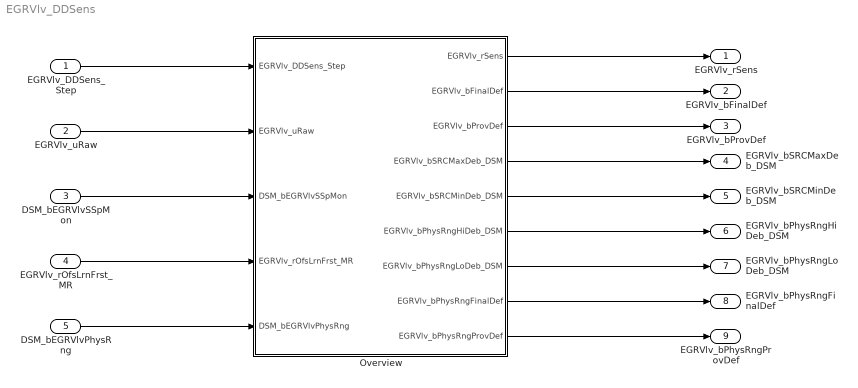
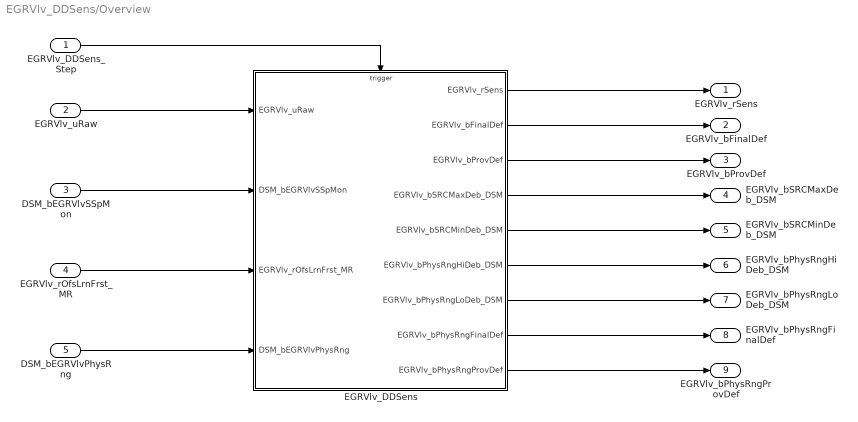
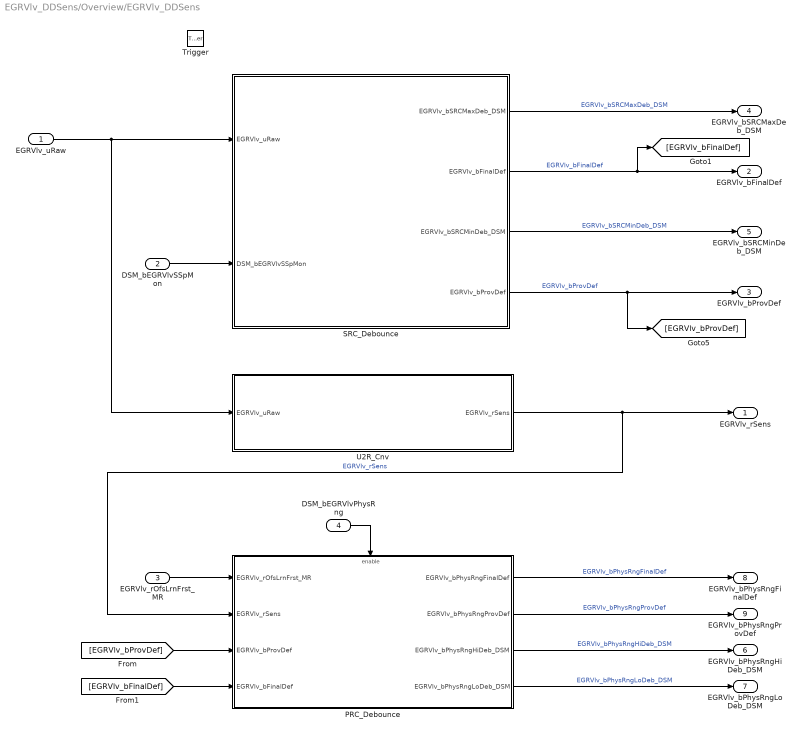
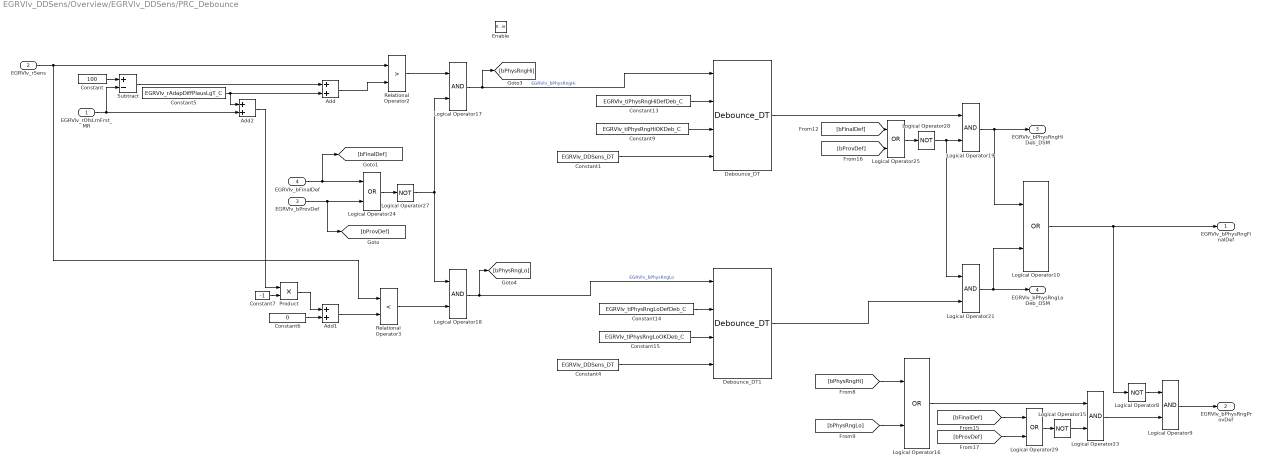
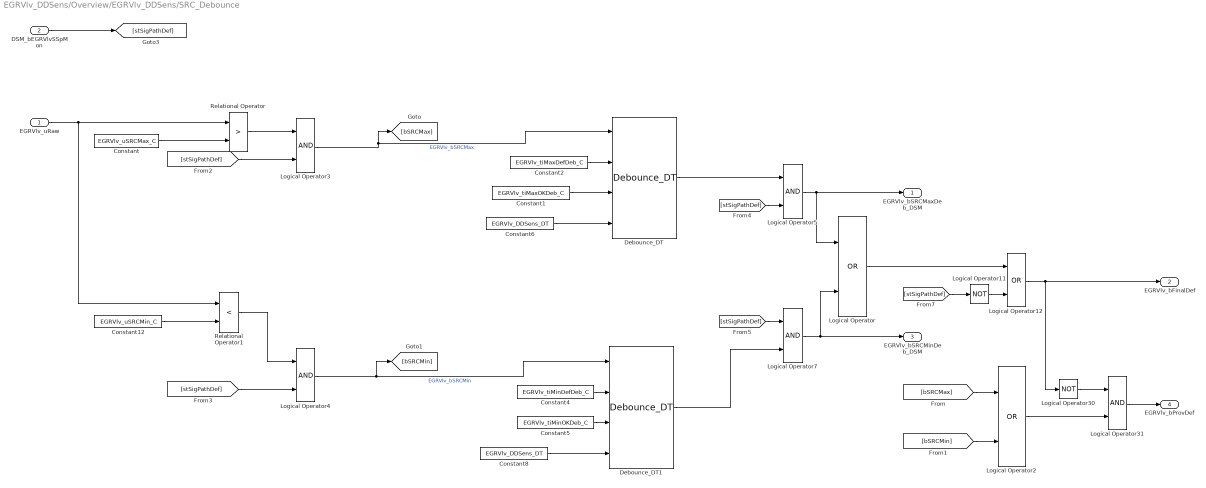
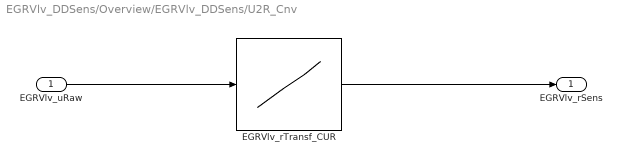
/*
 * File: EGRVlv_DDSens.c
 *
 * Code generated for Simulink model 'EGRVlv_DDSens'.
 *
 * Model version                  : 1.60
 * Simulink Coder version         : 9.4 (R2020b) 29-Jul-2020
 * C/C++ source code generated on : Thu Feb  4 09:39:52 2021
 *
 * Target selection: ert.tlc
 * Embedded hardware selection: ARM Compatible->ARM Cortex
 * Code generation objectives: Unspecified
 * Validation result: Not run
 */

#include "EGRVlv_DDSens.h"
#include "look1_is16lu16n16ts16D_vPytCsBO.h"
#ifndef UCHAR_MAX
#include <limits.h>
#endif

#if ( UCHAR_MAX != (0xFFU) ) || ( SCHAR_MAX != (0x7F) )
#error Code was generated for compiler with different sized uchar/char. \
Consider adjusting Test hardware word size settings on the \
Hardware Implementation pane to match your compiler word sizes as \
defined in limits.h of the compiler. Alternatively, you can \
select the Test hardware is the same as production hardware option and \
select the Enable portable word sizes option on the Code Generation > \
Verification pane for ERT based targets, which will disable the \
preprocessor word size checks.
#endif

#if ( USHRT_MAX != (0xFFFFU) ) || ( SHRT_MAX != (0x7FFF) )
#error Code was generated for compiler with different sized ushort/short. \
Consider adjusting Test hardware word size settings on the \
Hardware Implementation pane to match your compiler word sizes as \
defined in limits.h of the compiler. Alternatively, you can \
select the Test hardware is the same as production hardware option and \
select the Enable portable word sizes option on the Code Generation > \
Verification pane for ERT based targets, which will disable the \
preprocessor word size checks.
#endif

#if ( UINT_MAX != (0xFFFFFFFFU) ) || ( INT_MAX != (0x7FFFFFFF) )
#error Code was generated for compiler with different sized uint/int. \
Consider adjusting Test hardware word size settings on the \
Hardware Implementation pane to match your compiler word sizes as \
defined in limits.h of the compiler. Alternatively, you can \
select the Test hardware is the same as production hardware option and \
select the Enable portable word sizes option on the Code Generation > \
Verification pane for ERT based targets, which will disable the \
preprocessor word size checks.
#endif

#if ( ULONG_MAX != (0xFFFFFFFFU) ) || ( LONG_MAX != (0x7FFFFFFF) )
#error Code was generated for compiler with different sized ulong/long. \
Consider adjusting Test hardware word size settings on the \
Hardware Implementation pane to match your compiler word sizes as \
defined in limits.h of the compiler. Alternatively, you can \
select the Test hardware is the same as production hardware option and \
select the Enable portable word sizes option on the Code Generation > \
Verification pane for ERT based targets, which will disable the \
preprocessor word size checks.
#endif

/* Exported block signals */
DutyCycle EGRVlv_rSens;                /* '<S5>/EGRVlv_rTransf_CUR'
                                        * Sensed value of actuator position without error handling
                                        */
boolean_T EGRVlv_bSRCMax;              /* '<S4>/Logical Operator3'
                                        * EGR Valve voltage signal maximum limit value
                                        */
boolean_T EGRVlv_bSRCMaxDeb_DSM;       /* '<S4>/Logical Operator5'
                                        * SRC High for EGR position sensor voltage
                                        */
boolean_T EGRVlv_bSRCMin;              /* '<S4>/Logical Operator4'
                                        * EGR Valve voltage signal minimum limit value
                                        */
boolean_T EGRVlv_bSRCMinDeb_DSM;       /* '<S4>/Logical Operator7'
                                        * SRC Low for EGR position sensor voltage
                                        */
boolean_T EGRVlv_bFinalDef;            /* '<S4>/Logical Operator12'
                                        * the final fault flag
                                        */
boolean_T EGRVlv_bProvDef;             /* '<S4>/Logical Operator31'
                                        * the fault flag for the moment
                                        */
boolean_T EGRVlv_bPhysRngFinalDef;     /* '<S2>/PRC_Debounce'
                                        * Status Sensor of the EGR valve physical Signal range check finally defect
                                        */
boolean_T EGRVlv_bPhysRngProvDef;      /* '<S2>/PRC_Debounce'
                                        * Status Sensor of the EGR valve physical Signal range check temporary defect
                                        */
boolean_T EGRVlv_bPhysRngHiDeb_DSM;    /* '<S2>/PRC_Debounce'
                                        * Status of EGRVlv_bPhysRngHiDeb
                                        */
boolean_T EGRVlv_bPhysRngLoDeb_DSM;    /* '<S2>/PRC_Debounce'
                                        * Status of EGRVlv_bPhysRngLoDeb
                                        */
boolean_T EGRVlv_bPhysRngHi;           /* '<S3>/Logical Operator17'
                                        * Status Sensor of the EGR Valve high voltage Signal range
                                        */
boolean_T EGRVlv_bPhysRngLo;           /* '<S3>/Logical Operator18'
                                        * Status Sensor of the EGR Valve low voltage Signal range
                                        */

/* Block signals (default storage) */
B_EGRVlv_DDSens_T EGRVlv_DDSens_B;

/* Block states (default storage) */
DW_EGRVlv_DDSens_T EGRVlv_DDSens_DW;

/* Previous zero-crossings (trigger) states */
PrevZCX_EGRVlv_DDSens_T EGRVlv_DDSens_PrevZCX;

/* Real-time model */
static RT_MODEL_EGRVlv_DDSens_T EGRVlv_DDSens_M_;
RT_MODEL_EGRVlv_DDSens_T *const EGRVlv_DDSens_M = &EGRVlv_DDSens_M_;

/* Model step function */
void EGRVlv_DDSens_Step(void)
{
  int32_T tmp;
  int32_T tmp_0;
  uint32_T tmp_1;
  Debncd_ms tmp_2;
  boolean_T Delay2_DSTATE_f_tmp;
  boolean_T Delay2_DSTATE_tmp;

  /* RootInportFunctionCallGenerator generated from: '<Root>/EGRVlv_DDSens_Step' incorporates:
   *  SubSystem: '<S1>/EGRVlv_DDSens'
   */
  /* Lookup_n-D: '<S5>/EGRVlv_rTransf_CUR' incorporates:
   *  Inport: '<Root>/EGRVlv_uRaw'
   *
   * Block description for '<Root>/EGRVlv_uRaw':
   *  Raw voltage value of position sensor
   */
  EGRVlv_rSens = look1_is16lu16n16ts16D_vPytCsBO(EGRVlv_uRaw, ((const Volt_mV *)
    &(EGRVlv_rTransf_CURX[0])), ((const DutyCycle *)&(EGRVlv_rTransf_CUR[0])),
    &EGRVlv_DDSens_DW.m_bpIndex, 24U);

  /* Logic: '<S4>/Logical Operator3' incorporates:
   *  Constant: '<S4>/Constant'
   *  Inport: '<Root>/DSM_bEGRVlvSSpMon'
   *  Inport: '<Root>/EGRVlv_uRaw'
   *  RelationalOperator: '<S4>/Relational Operator'
   *
   * Block description for '<Root>/DSM_bEGRVlvSSpMon':
   *  Status of FId_EGRVlvSSpMon
   *
   * Block description for '<Root>/EGRVlv_uRaw':
   *  Raw voltage value of position sensor
   */
  EGRVlv_bSRCMax = ((EGRVlv_uRaw > EGRVlv_uSRCMax_C) && DSM_bEGRVlvSSpMon);

  /* Delay: '<S8>/Delay1' */
  if (EGRVlv_DDSens_DW.icLoad != 0) {
    /* Switch: '<S8>/Switch1' */
    EGRVlv_DDSens_DW.Delay1_DSTATE = EGRVlv_bSRCMax;
  }

  /* Delay: '<S8>/Delay' incorporates:
   *  Delay: '<S8>/Delay2'
   */
  if (EGRVlv_DDSens_DW.Delay2_DSTATE && (EGRVlv_DDSens_PrevZCX.Delay_Reset_ZCE
       != POS_ZCSIG)) {
    /* MinMax: '<S8>/Min' */
    EGRVlv_DDSens_DW.Delay_DSTATE = 0U;
  }

  EGRVlv_DDSens_PrevZCX.Delay_Reset_ZCE = EGRVlv_DDSens_DW.Delay2_DSTATE;

  /* Switch: '<S8>/Switch2' incorporates:
   *  Delay: '<S8>/Delay'
   *  Delay: '<S8>/Delay1'
   *  MinMax: '<S8>/Min'
   *  RelationalOperator: '<S8>/Relational Operator1'
   */
  if (EGRVlv_bSRCMax == EGRVlv_DDSens_DW.Delay1_DSTATE) {
    /* Sum: '<S8>/Add' incorporates:
     *  Constant: '<S4>/Constant6'
     *  Delay: '<S8>/Delay'
     */
    tmp_1 = EGRVlv_DDSens_DW.Delay_DSTATE + 100U;
    if (EGRVlv_DDSens_DW.Delay_DSTATE + 100U > 65535U) {
      tmp_1 = 65535U;
    }

    /* MinMax: '<S8>/Min' incorporates:
     *  Delay: '<S8>/Delay'
     *  Sum: '<S8>/Add'
     *  Switch: '<S8>/Switch2'
     */
    EGRVlv_DDSens_DW.Delay_DSTATE = (Debncd_ms)tmp_1;
  } else {
    if (EGRVlv_DDSens_DW.Delay_DSTATE > 100) {
      /* MinMax: '<S8>/Min' incorporates:
       *  Delay: '<S8>/Delay'
       */
      tmp_2 = EGRVlv_DDSens_DW.Delay_DSTATE;
    } else {
      /* MinMax: '<S8>/Min' incorporates:
       *  Constant: '<S4>/Constant6'
       */
      tmp_2 = 100U;
    }

    /* Sum: '<S8>/Subtract' incorporates:
     *  Constant: '<S4>/Constant6'
     */
    tmp_0 = tmp_2 - 100;

    /* MinMax: '<S8>/Min' incorporates:
     *  Constant: '<S4>/Constant6'
     *  Delay: '<S8>/Delay'
     */
    if (EGRVlv_DDSens_DW.Delay_DSTATE <= 100) {
      EGRVlv_DDSens_DW.Delay_DSTATE = 100U;
    }

    /* Sum: '<S8>/Subtract' incorporates:
     *  Constant: '<S4>/Constant6'
     */
    if (EGRVlv_DDSens_DW.Delay_DSTATE - 100 < 0) {
      tmp_0 = 0;
    }

    /* MinMax: '<S8>/Min' incorporates:
     *  Delay: '<S8>/Delay'
     *  Sum: '<S8>/Subtract'
     *  Switch: '<S8>/Switch2'
     */
    EGRVlv_DDSens_DW.Delay_DSTATE = (Debncd_ms)tmp_0;
  }

  /* End of Switch: '<S8>/Switch2' */

  /* Logic: '<S8>/Logical Operator5' incorporates:
   *  Delay: '<S8>/Delay1'
   *  Logic: '<S8>/Logical Operator1'
   *  Switch: '<S8>/Switch1'
   */
  Delay2_DSTATE_tmp = !EGRVlv_DDSens_DW.Delay1_DSTATE;

  /* Logic: '<S8>/Logical Operator' incorporates:
   *  Constant: '<S4>/Constant1'
   *  Constant: '<S4>/Constant2'
   *  Delay: '<S8>/Delay'
   *  Delay: '<S8>/Delay1'
   *  Delay: '<S8>/Delay2'
   *  Logic: '<S8>/Logical Operator2'
   *  Logic: '<S8>/Logical Operator3'
   *  Logic: '<S8>/Logical Operator5'
   *  RelationalOperator: '<S8>/Relational Operator2'
   *  RelationalOperator: '<S8>/Relational Operator3'
   *  Switch: '<S8>/Switch2'
   */
  EGRVlv_DDSens_DW.Delay2_DSTATE = ((Delay2_DSTATE_tmp &&
    (EGRVlv_DDSens_DW.Delay_DSTATE >= EGRVlv_tiMaxDefDeb_C)) ||
    (EGRVlv_DDSens_DW.Delay1_DSTATE && (EGRVlv_DDSens_DW.Delay_DSTATE >=
    EGRVlv_tiMaxOKDeb_C)));

  /* Switch: '<S8>/Switch1' incorporates:
   *  Delay: '<S8>/Delay2'
   */
  if (EGRVlv_DDSens_DW.Delay2_DSTATE) {
    /* Switch: '<S8>/Switch1' */
    EGRVlv_DDSens_DW.Delay1_DSTATE = Delay2_DSTATE_tmp;
  }

  /* Logic: '<S4>/Logical Operator5' incorporates:
   *  Inport: '<Root>/DSM_bEGRVlvSSpMon'
   *
   * Block description for '<Root>/DSM_bEGRVlvSSpMon':
   *  Status of FId_EGRVlvSSpMon
   */
  EGRVlv_bSRCMaxDeb_DSM = (EGRVlv_DDSens_DW.Delay1_DSTATE && DSM_bEGRVlvSSpMon);

  /* Logic: '<S4>/Logical Operator4' incorporates:
   *  Constant: '<S4>/Constant12'
   *  Inport: '<Root>/DSM_bEGRVlvSSpMon'
   *  Inport: '<Root>/EGRVlv_uRaw'
   *  RelationalOperator: '<S4>/Relational Operator1'
   *
   * Block description for '<Root>/DSM_bEGRVlvSSpMon':
   *  Status of FId_EGRVlvSSpMon
   *
   * Block description for '<Root>/EGRVlv_uRaw':
   *  Raw voltage value of position sensor
   */
  EGRVlv_bSRCMin = ((EGRVlv_uRaw < EGRVlv_uSRCMin_C) && DSM_bEGRVlvSSpMon);

  /* Delay: '<S9>/Delay1' */
  if (EGRVlv_DDSens_DW.icLoad_c != 0) {
    /* Switch: '<S9>/Switch1' */
    EGRVlv_DDSens_DW.Delay1_DSTATE_a = EGRVlv_bSRCMin;
  }

  /* Delay: '<S9>/Delay' incorporates:
   *  Delay: '<S9>/Delay2'
   */
  if (EGRVlv_DDSens_DW.Delay2_DSTATE_e &&
      (EGRVlv_DDSens_PrevZCX.Delay_Reset_ZCE_m != POS_ZCSIG)) {
    /* MinMax: '<S9>/Min' */
    EGRVlv_DDSens_DW.Delay_DSTATE_m = 0U;
  }

  EGRVlv_DDSens_PrevZCX.Delay_Reset_ZCE_m = EGRVlv_DDSens_DW.Delay2_DSTATE_e;

  /* Switch: '<S9>/Switch2' incorporates:
   *  Delay: '<S9>/Delay'
   *  Delay: '<S9>/Delay1'
   *  MinMax: '<S9>/Min'
   *  RelationalOperator: '<S9>/Relational Operator1'
   */
  if (EGRVlv_bSRCMin == EGRVlv_DDSens_DW.Delay1_DSTATE_a) {
    /* Sum: '<S9>/Add' incorporates:
     *  Constant: '<S4>/Constant8'
     *  Delay: '<S9>/Delay'
     */
    tmp_1 = EGRVlv_DDSens_DW.Delay_DSTATE_m + 100U;
    if (EGRVlv_DDSens_DW.Delay_DSTATE_m + 100U > 65535U) {
      tmp_1 = 65535U;
    }

    /* MinMax: '<S9>/Min' incorporates:
     *  Delay: '<S9>/Delay'
     *  Sum: '<S9>/Add'
     *  Switch: '<S9>/Switch2'
     */
    EGRVlv_DDSens_DW.Delay_DSTATE_m = (Debncd_ms)tmp_1;
  } else {
    if (EGRVlv_DDSens_DW.Delay_DSTATE_m > 100) {
      /* MinMax: '<S9>/Min' incorporates:
       *  Delay: '<S9>/Delay'
       */
      tmp_2 = EGRVlv_DDSens_DW.Delay_DSTATE_m;
    } else {
      /* MinMax: '<S9>/Min' incorporates:
       *  Constant: '<S4>/Constant8'
       */
      tmp_2 = 100U;
    }

    /* Sum: '<S9>/Subtract' incorporates:
     *  Constant: '<S4>/Constant8'
     */
    tmp_0 = tmp_2 - 100;

    /* MinMax: '<S9>/Min' incorporates:
     *  Constant: '<S4>/Constant8'
     *  Delay: '<S9>/Delay'
     */
    if (EGRVlv_DDSens_DW.Delay_DSTATE_m <= 100) {
      EGRVlv_DDSens_DW.Delay_DSTATE_m = 100U;
    }

    /* Sum: '<S9>/Subtract' incorporates:
     *  Constant: '<S4>/Constant8'
     */
    if (EGRVlv_DDSens_DW.Delay_DSTATE_m - 100 < 0) {
      tmp_0 = 0;
    }

    /* MinMax: '<S9>/Min' incorporates:
     *  Delay: '<S9>/Delay'
     *  Sum: '<S9>/Subtract'
     *  Switch: '<S9>/Switch2'
     */
    EGRVlv_DDSens_DW.Delay_DSTATE_m = (Debncd_ms)tmp_0;
  }

  /* End of Switch: '<S9>/Switch2' */

  /* Logic: '<S9>/Logical Operator5' incorporates:
   *  Delay: '<S9>/Delay1'
   *  Logic: '<S9>/Logical Operator1'
   *  Switch: '<S9>/Switch1'
   */
  Delay2_DSTATE_tmp = !EGRVlv_DDSens_DW.Delay1_DSTATE_a;

  /* Logic: '<S9>/Logical Operator' incorporates:
   *  Constant: '<S4>/Constant4'
   *  Constant: '<S4>/Constant5'
   *  Delay: '<S9>/Delay'
   *  Delay: '<S9>/Delay1'
   *  Delay: '<S9>/Delay2'
   *  Logic: '<S9>/Logical Operator2'
   *  Logic: '<S9>/Logical Operator3'
   *  Logic: '<S9>/Logical Operator5'
   *  RelationalOperator: '<S9>/Relational Operator2'
   *  RelationalOperator: '<S9>/Relational Operator3'
   *  Switch: '<S9>/Switch2'
   */
  EGRVlv_DDSens_DW.Delay2_DSTATE_e = ((Delay2_DSTATE_tmp &&
    (EGRVlv_DDSens_DW.Delay_DSTATE_m >= EGRVlv_tiMinDefDeb_C)) ||
    (EGRVlv_DDSens_DW.Delay1_DSTATE_a && (EGRVlv_DDSens_DW.Delay_DSTATE_m >=
    EGRVlv_tiMinOKDeb_C)));

  /* Switch: '<S9>/Switch1' incorporates:
   *  Delay: '<S9>/Delay2'
   */
  if (EGRVlv_DDSens_DW.Delay2_DSTATE_e) {
    /* Switch: '<S9>/Switch1' */
    EGRVlv_DDSens_DW.Delay1_DSTATE_a = Delay2_DSTATE_tmp;
  }

  /* Logic: '<S4>/Logical Operator7' incorporates:
   *  Inport: '<Root>/DSM_bEGRVlvSSpMon'
   *
   * Block description for '<Root>/DSM_bEGRVlvSSpMon':
   *  Status of FId_EGRVlvSSpMon
   */
  EGRVlv_bSRCMinDeb_DSM = (DSM_bEGRVlvSSpMon && EGRVlv_DDSens_DW.Delay1_DSTATE_a);

  /* Logic: '<S4>/Logical Operator12' incorporates:
   *  Inport: '<Root>/DSM_bEGRVlvSSpMon'
   *  Logic: '<S4>/Logical Operator'
   *  Logic: '<S4>/Logical Operator11'
   *
   * Block description for '<Root>/DSM_bEGRVlvSSpMon':
   *  Status of FId_EGRVlvSSpMon
   */
  EGRVlv_bFinalDef = (EGRVlv_bSRCMaxDeb_DSM || EGRVlv_bSRCMinDeb_DSM ||
                      (!DSM_bEGRVlvSSpMon));

  /* Outputs for Enabled SubSystem: '<S2>/PRC_Debounce' incorporates:
   *  EnablePort: '<S3>/Enable'
   */
  /* Logic: '<S4>/Logical Operator30' incorporates:
   *  Logic: '<S3>/Logical Operator24'
   */
  Delay2_DSTATE_tmp = !EGRVlv_bFinalDef;

  /* End of Outputs for SubSystem: '<S2>/PRC_Debounce' */

  /* Logic: '<S4>/Logical Operator31' incorporates:
   *  Logic: '<S4>/Logical Operator2'
   *  Logic: '<S4>/Logical Operator30'
   */
  EGRVlv_bProvDef = (Delay2_DSTATE_tmp && (EGRVlv_bSRCMax || EGRVlv_bSRCMin));

  /* Outputs for Enabled SubSystem: '<S2>/PRC_Debounce' incorporates:
   *  EnablePort: '<S3>/Enable'
   */
  /* Inport: '<Root>/DSM_bEGRVlvPhysRng'
   *
   * Block description for '<Root>/DSM_bEGRVlvPhysRng':
   *  Status of FId_EGRVlvPhysRng
   */
  if (DSM_bEGRVlvPhysRng) {
    /* Logic: '<S3>/Logical Operator27' incorporates:
     *  Logic: '<S3>/Logical Operator15'
     *  Logic: '<S3>/Logical Operator24'
     *  Logic: '<S3>/Logical Operator25'
     *  Logic: '<S3>/Logical Operator28'
     *  Logic: '<S3>/Logical Operator29'
     */
    Delay2_DSTATE_tmp = (Delay2_DSTATE_tmp && (!EGRVlv_bProvDef));

    /* Sum: '<S3>/Subtract' incorporates:
     *  Constant: '<S3>/Constant'
     *  Inport: '<Root>/EGRVlv_rOfsLrnFrst_MR'
     *
     * Block description for '<Root>/EGRVlv_rOfsLrnFrst_MR':
     *  First learnt offset value read from EEPROM
     */
    tmp_0 = 20000 - EGRVlv_rOfsLrnFrst_MR;
    if (20000 - EGRVlv_rOfsLrnFrst_MR > 32767) {
      tmp_0 = 32767;
    }

    /* Sum: '<S3>/Add' incorporates:
     *  Constant: '<S3>/Constant5'
     *  Sum: '<S3>/Subtract'
     */
    tmp_0 += EGRVlv_rAdapDiffPlausLgT_C;
    if (tmp_0 > 32767) {
      tmp_0 = 32767;
    } else {
      if (tmp_0 < -32768) {
        tmp_0 = -32768;
      }
    }

    /* Logic: '<S3>/Logical Operator17' incorporates:
     *  Logic: '<S3>/Logical Operator24'
     *  Logic: '<S3>/Logical Operator27'
     *  Lookup_n-D: '<S5>/EGRVlv_rTransf_CUR'
     *  RelationalOperator: '<S3>/Relational Operator2'
     *  Sum: '<S3>/Add'
     */
    EGRVlv_bPhysRngHi = ((EGRVlv_rSens > tmp_0) && Delay2_DSTATE_tmp);

    /* Delay: '<S6>/Delay1' */
    if (EGRVlv_DDSens_DW.icLoad_m != 0) {
      /* Switch: '<S6>/Switch1' */
      EGRVlv_DDSens_DW.Delay1_DSTATE_n = EGRVlv_bPhysRngHi;
    }

    /* Delay: '<S6>/Delay' incorporates:
     *  Delay: '<S6>/Delay2'
     */
    if (EGRVlv_DDSens_DW.Delay2_DSTATE_f &&
        (EGRVlv_DDSens_PrevZCX.Delay_Reset_ZCE_k != POS_ZCSIG)) {
      /* MinMax: '<S6>/Min' */
      EGRVlv_DDSens_DW.Delay_DSTATE_e = 0U;
    }

    EGRVlv_DDSens_PrevZCX.Delay_Reset_ZCE_k = EGRVlv_DDSens_DW.Delay2_DSTATE_f;

    /* Switch: '<S6>/Switch2' incorporates:
     *  Delay: '<S6>/Delay'
     *  Delay: '<S6>/Delay1'
     *  MinMax: '<S6>/Min'
     *  RelationalOperator: '<S6>/Relational Operator1'
     */
    if (EGRVlv_bPhysRngHi == EGRVlv_DDSens_DW.Delay1_DSTATE_n) {
      /* Sum: '<S6>/Add' incorporates:
       *  Constant: '<S3>/Constant1'
       *  Delay: '<S6>/Delay'
       */
      tmp_1 = EGRVlv_DDSens_DW.Delay_DSTATE_e + 100U;
      if (EGRVlv_DDSens_DW.Delay_DSTATE_e + 100U > 65535U) {
        tmp_1 = 65535U;
      }

      /* MinMax: '<S6>/Min' incorporates:
       *  Delay: '<S6>/Delay'
       *  Sum: '<S6>/Add'
       *  Switch: '<S6>/Switch2'
       */
      EGRVlv_DDSens_DW.Delay_DSTATE_e = (Debncd_ms)tmp_1;
    } else {
      if (EGRVlv_DDSens_DW.Delay_DSTATE_e > 100) {
        /* MinMax: '<S6>/Min' incorporates:
         *  Delay: '<S6>/Delay'
         */
        tmp_2 = EGRVlv_DDSens_DW.Delay_DSTATE_e;
      } else {
        /* MinMax: '<S6>/Min' incorporates:
         *  Constant: '<S3>/Constant1'
         */
        tmp_2 = 100U;
      }

      /* Sum: '<S6>/Subtract' incorporates:
       *  Constant: '<S3>/Constant1'
       */
      tmp_0 = tmp_2 - 100;

      /* MinMax: '<S6>/Min' incorporates:
       *  Constant: '<S3>/Constant1'
       *  Delay: '<S6>/Delay'
       */
      if (EGRVlv_DDSens_DW.Delay_DSTATE_e <= 100) {
        EGRVlv_DDSens_DW.Delay_DSTATE_e = 100U;
      }

      /* Sum: '<S6>/Subtract' incorporates:
       *  Constant: '<S3>/Constant1'
       */
      if (EGRVlv_DDSens_DW.Delay_DSTATE_e - 100 < 0) {
        tmp_0 = 0;
      }

      /* MinMax: '<S6>/Min' incorporates:
       *  Delay: '<S6>/Delay'
       *  Sum: '<S6>/Subtract'
       *  Switch: '<S6>/Switch2'
       */
      EGRVlv_DDSens_DW.Delay_DSTATE_e = (Debncd_ms)tmp_0;
    }

    /* End of Switch: '<S6>/Switch2' */

    /* Logic: '<S6>/Logical Operator5' incorporates:
     *  Delay: '<S6>/Delay1'
     *  Logic: '<S6>/Logical Operator1'
     *  Switch: '<S6>/Switch1'
     */
    Delay2_DSTATE_f_tmp = !EGRVlv_DDSens_DW.Delay1_DSTATE_n;

    /* Logic: '<S6>/Logical Operator' incorporates:
     *  Constant: '<S3>/Constant13'
     *  Constant: '<S3>/Constant9'
     *  Delay: '<S6>/Delay'
     *  Delay: '<S6>/Delay1'
     *  Delay: '<S6>/Delay2'
     *  Logic: '<S6>/Logical Operator2'
     *  Logic: '<S6>/Logical Operator3'
     *  Logic: '<S6>/Logical Operator5'
     *  RelationalOperator: '<S6>/Relational Operator2'
     *  RelationalOperator: '<S6>/Relational Operator3'
     *  Switch: '<S6>/Switch2'
     */
    EGRVlv_DDSens_DW.Delay2_DSTATE_f = ((Delay2_DSTATE_f_tmp &&
      (EGRVlv_DDSens_DW.Delay_DSTATE_e >= EGRVlv_tiPhysRngHiDefDeb_C)) ||
      (EGRVlv_DDSens_DW.Delay1_DSTATE_n && (EGRVlv_DDSens_DW.Delay_DSTATE_e >=
      EGRVlv_tiPhysRngHiOKDeb_C)));

    /* Switch: '<S6>/Switch1' incorporates:
     *  Delay: '<S6>/Delay2'
     */
    if (EGRVlv_DDSens_DW.Delay2_DSTATE_f) {
      /* Switch: '<S6>/Switch1' */
      EGRVlv_DDSens_DW.Delay1_DSTATE_n = Delay2_DSTATE_f_tmp;
    }

    /* Logic: '<S3>/Logical Operator19' */
    EGRVlv_DDSens_B.LogicalOperator19 = (EGRVlv_DDSens_DW.Delay1_DSTATE_n &&
      Delay2_DSTATE_tmp);

    /* Sum: '<S3>/Add2' incorporates:
     *  Constant: '<S3>/Constant5'
     *  Inport: '<Root>/EGRVlv_rOfsLrnFrst_MR'
     *
     * Block description for '<Root>/EGRVlv_rOfsLrnFrst_MR':
     *  First learnt offset value read from EEPROM
     */
    tmp_0 = EGRVlv_rAdapDiffPlausLgT_C + EGRVlv_rOfsLrnFrst_MR;
    if (tmp_0 > 32767) {
      tmp_0 = 32767;
    } else {
      if (tmp_0 < -32768) {
        tmp_0 = -32768;
      }
    }

    /* Product: '<S3>/Product' incorporates:
     *  Sum: '<S3>/Add2'
     */
    tmp = -tmp_0;
    if (-tmp_0 > 32767) {
      tmp = 32767;
    }

    /* Logic: '<S3>/Logical Operator18' incorporates:
     *  Logic: '<S3>/Logical Operator24'
     *  Logic: '<S3>/Logical Operator27'
     *  Lookup_n-D: '<S5>/EGRVlv_rTransf_CUR'
     *  Product: '<S3>/Product'
     *  RelationalOperator: '<S3>/Relational Operator3'
     */
    EGRVlv_bPhysRngLo = (Delay2_DSTATE_tmp && (EGRVlv_rSens < tmp));

    /* Delay: '<S7>/Delay1' */
    if (EGRVlv_DDSens_DW.icLoad_o != 0) {
      /* Switch: '<S7>/Switch1' */
      EGRVlv_DDSens_DW.Delay1_DSTATE_d = EGRVlv_bPhysRngLo;
    }

    /* Delay: '<S7>/Delay' incorporates:
     *  Delay: '<S7>/Delay2'
     */
    if (EGRVlv_DDSens_DW.Delay2_DSTATE_p &&
        (EGRVlv_DDSens_PrevZCX.Delay_Reset_ZCE_h != POS_ZCSIG)) {
      /* MinMax: '<S7>/Min' */
      EGRVlv_DDSens_DW.Delay_DSTATE_p = 0U;
    }

    EGRVlv_DDSens_PrevZCX.Delay_Reset_ZCE_h = EGRVlv_DDSens_DW.Delay2_DSTATE_p;

    /* Switch: '<S7>/Switch2' incorporates:
     *  Delay: '<S7>/Delay'
     *  Delay: '<S7>/Delay1'
     *  MinMax: '<S7>/Min'
     *  RelationalOperator: '<S7>/Relational Operator1'
     */
    if (EGRVlv_bPhysRngLo == EGRVlv_DDSens_DW.Delay1_DSTATE_d) {
      /* Sum: '<S7>/Add' incorporates:
       *  Constant: '<S3>/Constant4'
       *  Delay: '<S7>/Delay'
       */
      tmp_1 = EGRVlv_DDSens_DW.Delay_DSTATE_p + 100U;
      if (EGRVlv_DDSens_DW.Delay_DSTATE_p + 100U > 65535U) {
        tmp_1 = 65535U;
      }

      /* MinMax: '<S7>/Min' incorporates:
       *  Delay: '<S7>/Delay'
       *  Sum: '<S7>/Add'
       *  Switch: '<S7>/Switch2'
       */
      EGRVlv_DDSens_DW.Delay_DSTATE_p = (Debncd_ms)tmp_1;
    } else {
      if (EGRVlv_DDSens_DW.Delay_DSTATE_p > 100) {
        /* MinMax: '<S7>/Min' incorporates:
         *  Delay: '<S7>/Delay'
         */
        tmp_2 = EGRVlv_DDSens_DW.Delay_DSTATE_p;
      } else {
        /* MinMax: '<S7>/Min' incorporates:
         *  Constant: '<S3>/Constant4'
         */
        tmp_2 = 100U;
      }

      /* Sum: '<S7>/Subtract' incorporates:
       *  Constant: '<S3>/Constant4'
       */
      tmp_0 = tmp_2 - 100;

      /* MinMax: '<S7>/Min' incorporates:
       *  Constant: '<S3>/Constant4'
       *  Delay: '<S7>/Delay'
       */
      if (EGRVlv_DDSens_DW.Delay_DSTATE_p <= 100) {
        EGRVlv_DDSens_DW.Delay_DSTATE_p = 100U;
      }

      /* Sum: '<S7>/Subtract' incorporates:
       *  Constant: '<S3>/Constant4'
       */
      if (EGRVlv_DDSens_DW.Delay_DSTATE_p - 100 < 0) {
        tmp_0 = 0;
      }

      /* MinMax: '<S7>/Min' incorporates:
       *  Delay: '<S7>/Delay'
       *  Sum: '<S7>/Subtract'
       *  Switch: '<S7>/Switch2'
       */
      EGRVlv_DDSens_DW.Delay_DSTATE_p = (Debncd_ms)tmp_0;
    }

    /* End of Switch: '<S7>/Switch2' */

    /* Logic: '<S7>/Logical Operator5' incorporates:
     *  Delay: '<S7>/Delay1'
     *  Logic: '<S7>/Logical Operator1'
     *  Switch: '<S7>/Switch1'
     */
    Delay2_DSTATE_f_tmp = !EGRVlv_DDSens_DW.Delay1_DSTATE_d;

    /* Logic: '<S7>/Logical Operator' incorporates:
     *  Constant: '<S3>/Constant14'
     *  Constant: '<S3>/Constant15'
     *  Delay: '<S7>/Delay'
     *  Delay: '<S7>/Delay1'
     *  Delay: '<S7>/Delay2'
     *  Logic: '<S7>/Logical Operator2'
     *  Logic: '<S7>/Logical Operator3'
     *  Logic: '<S7>/Logical Operator5'
     *  RelationalOperator: '<S7>/Relational Operator2'
     *  RelationalOperator: '<S7>/Relational Operator3'
     *  Switch: '<S7>/Switch2'
     */
    EGRVlv_DDSens_DW.Delay2_DSTATE_p = ((Delay2_DSTATE_f_tmp &&
      (EGRVlv_DDSens_DW.Delay_DSTATE_p >= EGRVlv_tiPhysRngLoDefDeb_C)) ||
      (EGRVlv_DDSens_DW.Delay1_DSTATE_d && (EGRVlv_DDSens_DW.Delay_DSTATE_p >=
      EGRVlv_tiPhysRngLoOKDeb_C)));

    /* Switch: '<S7>/Switch1' incorporates:
     *  Delay: '<S7>/Delay2'
     */
    if (EGRVlv_DDSens_DW.Delay2_DSTATE_p) {
      /* Switch: '<S7>/Switch1' */
      EGRVlv_DDSens_DW.Delay1_DSTATE_d = Delay2_DSTATE_f_tmp;
    }

    /* Logic: '<S3>/Logical Operator21' */
    EGRVlv_DDSens_B.LogicalOperator21 = (Delay2_DSTATE_tmp &&
      EGRVlv_DDSens_DW.Delay1_DSTATE_d);

    /* Logic: '<S3>/Logical Operator10' */
    EGRVlv_DDSens_B.LogicalOperator10 = (EGRVlv_DDSens_B.LogicalOperator19 ||
      EGRVlv_DDSens_B.LogicalOperator21);

    /* Logic: '<S3>/Logical Operator9' incorporates:
     *  Logic: '<S3>/Logical Operator16'
     *  Logic: '<S3>/Logical Operator23'
     *  Logic: '<S3>/Logical Operator8'
     */
    EGRVlv_DDSens_B.LogicalOperator9 = ((!EGRVlv_DDSens_B.LogicalOperator10) &&
      ((EGRVlv_bPhysRngHi || EGRVlv_bPhysRngLo) && Delay2_DSTATE_tmp));

    /* Update for Delay: '<S6>/Delay1' */
    EGRVlv_DDSens_DW.icLoad_m = 0U;

    /* Update for Delay: '<S7>/Delay1' */
    EGRVlv_DDSens_DW.icLoad_o = 0U;
  }

  /* End of Inport: '<Root>/DSM_bEGRVlvPhysRng' */
  /* End of Outputs for SubSystem: '<S2>/PRC_Debounce' */

  /* SignalConversion generated from: '<S2>/PRC_Debounce' */
  EGRVlv_bPhysRngFinalDef = EGRVlv_DDSens_B.LogicalOperator10;

  /* SignalConversion generated from: '<S2>/PRC_Debounce' */
  EGRVlv_bPhysRngProvDef = EGRVlv_DDSens_B.LogicalOperator9;

  /* SignalConversion generated from: '<S2>/PRC_Debounce' */
  EGRVlv_bPhysRngHiDeb_DSM = EGRVlv_DDSens_B.LogicalOperator19;

  /* SignalConversion generated from: '<S2>/PRC_Debounce' */
  EGRVlv_bPhysRngLoDeb_DSM = EGRVlv_DDSens_B.LogicalOperator21;

  /* Update for Delay: '<S8>/Delay1' */
  EGRVlv_DDSens_DW.icLoad = 0U;

  /* Update for Delay: '<S9>/Delay1' */
  EGRVlv_DDSens_DW.icLoad_c = 0U;

  /* End of Outputs for RootInportFunctionCallGenerator generated from: '<Root>/EGRVlv_DDSens_Step' */
}
